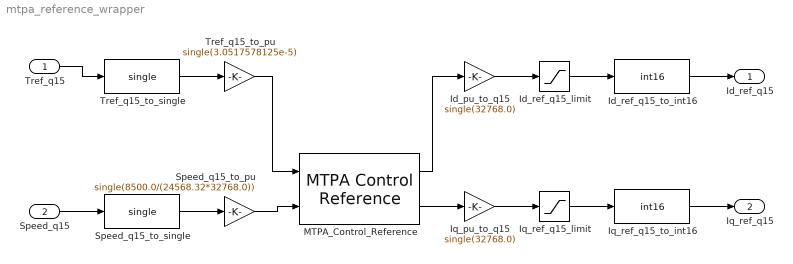
/*
 * Academic License - for use in teaching, academic research, and meeting
 * course requirements at degree granting institutions only.  Not for
 * government, commercial, or other organizational use.
 *
 * File: mtpa_reference_wrapper.c
 *
 * Code generated for Simulink model 'mtpa_reference_wrapper'.
 *
 * Model version                  : 1.4
 * Simulink Coder version         : 26.1 (R2026a) 20-Nov-2025
 * C/C++ source code generated on : Fri Jul 24 16:22:32 2026
 *
 * Target selection: ert.tlc
 * Embedded hardware selection: Intel->x86-64 (Windows64)
 * Code generation objectives: Unspecified
 * Validation result: Not run
 */

#include "mtpa_reference_wrapper.h"
#include "../mtpa_project_parameters.h"
#include <math.h>
#include "rtwtypes.h"

/* Block signals (default storage) */
B_mtpa_reference_wrapper_T mtpa_reference_wrapper_B;

/* External inputs (root inport signals with default storage) */
ExtU_mtpa_reference_wrapper_T mtpa_reference_wrapper_U;

/* External outputs (root outports fed by signals with default storage) */
ExtY_mtpa_reference_wrapper_T mtpa_reference_wrapper_Y;

/* Real-time model */
static RT_MODEL_mtpa_reference_wrapp_T mtpa_reference_wrapper_M_;
RT_MODEL_mtpa_reference_wrapp_T *const mtpa_reference_wrapper_M =
  &mtpa_reference_wrapper_M_;

/* Fixed-parameter generated reference retained for model traceability. */
void mtpa_reference_wrapper_model_step(void)
{
  real32_T rtb_Abs;
  real32_T rtb_Abs_f;
  real32_T rtb_Abs_ka;
  real32_T rtb_Id_ref_q15_limit;
  real32_T rtb_Id_ref_q15_limit_p;
  real32_T rtb_Iq_ref_q15_limit;
  real32_T rtb_Saturation2;
  real32_T rtb_Sqrt;
  real32_T rtb_we;

  /* Gain: '<Root>/Tref_q15_to_pu' incorporates:
   *  DataTypeConversion: '<Root>/Tref_q15_to_single'
   *  Inport: '<Root>/Tref_q15'
   */
  rtb_Iq_ref_q15_limit = 3.0517578E-5F * (real32_T)
    mtpa_reference_wrapper_U.Tref_q15;

  /* Abs: '<S3>/Abs' */
  rtb_Abs = fabsf(rtb_Iq_ref_q15_limit);

  /* Product: '<S9>/Square' incorporates:
   *  Saturate: '<S8>/Saturation'
   */
  rtb_Abs_ka = rtb_Abs * rtb_Abs;

  /* Sum: '<S9>/Sum2' incorporates:
   *  Abs: '<S9>/Abs'
   *  Constant: '<S9>/term1'
   *  Constant: '<S9>/term2'
   *  Gain: '<S9>/term3'
   *  Product: '<S9>/Square1'
   *  Sqrt: '<S9>/Sqrt'
   *  Sum: '<S9>/Sum3'
   */
  rtb_Saturation2 = 0.14722988F - sqrtf(fabsf(-0.5F * rtb_Abs_ka - 0.021676637F));

  /* Saturate: '<S13>/Saturation2' */
  if (rtb_Saturation2 > 0.0F) {
    rtb_Saturation2 = 0.0F;
  }

  /* End of Saturate: '<S13>/Saturation2' */

  /* Abs: '<S1>/Abs' incorporates:
   *  DataTypeConversion: '<Root>/Speed_q15_to_single'
   *  Gain: '<Root>/Speed_q15_to_pu'
   *  Inport: '<Root>/Speed_q15'
   */
  rtb_Abs_f = fabsf(1.05582885E-5F * (real32_T)
                    mtpa_reference_wrapper_U.Speed_q15);

  /* Gain: '<S8>/Gain1' */
  rtb_we = 4.0F * rtb_Abs_f;

  /* Sum: '<S41>/Sum1' incorporates:
   *  Gain: '<S41>/FluxPM'
   *  Gain: '<S41>/Ld'
   *  Product: '<S41>/Product1'
   */
  rtb_Id_ref_q15_limit = rtb_Saturation2 * rtb_we * 0.267372F + 0.14433888F *
    rtb_we;

  /* Sqrt: '<S13>/Sqrt' incorporates:
   *  Abs: '<S13>/Abs'
   *  Product: '<S13>/Product1'
   *  Sum: '<S13>/Sum2'
   */
  rtb_Sqrt = sqrtf(fabsf(rtb_Abs_ka - rtb_Saturation2 * rtb_Saturation2));

  /* Gain: '<S41>/Lq' incorporates:
   *  Product: '<S41>/Product'
   */
  rtb_Id_ref_q15_limit_p = rtb_we * rtb_Sqrt * 0.51246303F;

  /* If: '<S8>/If' incorporates:
   *  Gain: '<S41>/2'
   *  Product: '<S41>/Product2'
   *  Product: '<S41>/Product3'
   *  RelationalOperator: '<S12>/GreaterThan'
   *  Sqrt: '<S41>/Sqrt'
   *  Sum: '<S41>/Sum3'
   *  Switch: '<S21>/Switch'
   */
  if (!(sqrtf(rtb_Id_ref_q15_limit * rtb_Id_ref_q15_limit +
              rtb_Id_ref_q15_limit_p * rtb_Id_ref_q15_limit_p) * 0.0017320508F >=
        mtpa_reference_wrapper_ConstB.Subtract)) {
    /* Outputs for IfAction SubSystem: '<S8>/MTPA condition' incorporates:
     *  ActionPort: '<S11>/Action Port'
     */
    /* SignalConversion generated from: '<S11>/id' incorporates:
     *  Merge: '<S8>/Merge'
     */
    mtpa_reference_wrapper_B.Merge[0] = rtb_Saturation2;

    /* SignalConversion generated from: '<S11>/iq' incorporates:
     *  Merge: '<S8>/Merge'
     */
    mtpa_reference_wrapper_B.Merge[1] = rtb_Sqrt;

    /* End of Outputs for SubSystem: '<S8>/MTPA condition' */
  } else {
    /* Outputs for IfAction SubSystem: '<S8>/FW condition' incorporates:
     *  ActionPort: '<S10>/Action Port'
     */
    if (rtb_Abs_f != 0.0F) {
      /* Switch: '<S21>/Switch' incorporates:
       *  Math: '<S21>/Math Function'
       *
       * About '<S21>/Math Function':
       *  Operator: reciprocal
       */
      rtb_Saturation2 = 1.0F / rtb_Abs_f;
    } else {
      /* Switch: '<S21>/Switch' incorporates:
       *  Constant: '<S21>/Constant'
       */
      rtb_Saturation2 = 1.0F;
    }

    /* Gain: '<S16>/  ' incorporates:
     *  Product: '<S16>/Square1'
     */
    rtb_Saturation2 = rtb_Saturation2 * mtpa_reference_wrapper_ConstB.Subtract1 *
      0.5718405F;

    /* Sum: '<S16>/Sum3' incorporates:
     *  Constant: '<S16>/term2'
     *  Constant: '<S16>/term3'
     *  Gain: '<S16>/ '
     *  Product: '<S16>/Square'
     *  Product: '<S16>/Square2'
     *  Sum: '<S16>/Sum1'
     */
    rtb_Saturation2 = 0.040769774F - (-1.4830285F - (-(rtb_Saturation2 *
      rtb_Saturation2)));

    /* If: '<S22>/If' incorporates:
     *  Constant: '<S38>/Constant'
     *  Gain: '<S39>/zero'
     *  RelationalOperator: '<S38>/Compare'
     *  Sqrt: '<S40>/Sqrt'
     */
    if (rtb_Saturation2 < 0.0F) {
      /* Outputs for IfAction SubSystem: '<S22>/If negative value' incorporates:
       *  ActionPort: '<S39>/Action Port'
       */
      rtb_Saturation2 *= 0.0F;

      /* End of Outputs for SubSystem: '<S22>/If negative value' */
    } else {
      /* Outputs for IfAction SubSystem: '<S22>/If positive value' incorporates:
       *  ActionPort: '<S40>/Action Port'
       */
      rtb_Saturation2 = sqrtf(rtb_Saturation2);

      /* End of Outputs for SubSystem: '<S22>/If positive value' */
    }

    /* Outputs for IfAction SubSystem: '<S20>/D or Q Axis Priority' incorporates:
     *  ActionPort: '<S24>/Action Port'
     */
    /* If: '<S20>/If' incorporates:
     *  Constant: '<S16>/term1'
     *  If: '<S22>/If'
     *  Product: '<S32>/Product'
     *  RelationalOperator: '<S33>/UpperRelop'
     *  Sum: '<S16>/Sum2'
     *  Sum: '<S32>/Sum'
     *  Switch: '<S33>/Switch'
     *  Switch: '<S33>/Switch2'
     */
    if (0.20191526F - rtb_Saturation2 < -1.0F) {
      rtb_Saturation2 = -1.0F;
    } else {
      rtb_Saturation2 = 0.20191526F - rtb_Saturation2;
    }

    rtb_Abs_f = 1.0F - rtb_Saturation2 * rtb_Saturation2;

    /* If: '<S32>/If' incorporates:
     *  If: '<S20>/If'
     *  Product: '<S32>/Product2'
     *  RelationalOperator: '<S32>/Relational Operator'
     *  Switch: '<S34>/Switch1'
     */
    if (rtb_Abs_f >= rtb_Abs_ka) {
      /* Outputs for IfAction SubSystem: '<S32>/passThrough' incorporates:
       *  ActionPort: '<S35>/Action Port'
       */
      /* Switch: '<S24>/Switch1' incorporates:
       *  Saturate: '<S8>/Saturation'
       *  SignalConversion generated from: '<S35>/ref2'
       */
      mtpa_reference_wrapper_B.Merge[1] = rtb_Abs;

      /* End of Outputs for SubSystem: '<S32>/passThrough' */
    } else {
      /* Outputs for IfAction SubSystem: '<S32>/limitRef2' incorporates:
       *  ActionPort: '<S34>/Action Port'
       */
      if (!(rtb_Abs_f > 0.0F)) {
        /* Switch: '<S34>/Switch1' incorporates:
         *  Constant: '<S34>/Constant'
         */
        rtb_Abs_f = 0.0F;
      }

      /* Switch: '<S24>/Switch1' incorporates:
       *  Sqrt: '<S34>/Sqrt'
       *  Switch: '<S34>/Switch'
       *  Switch: '<S34>/Switch1'
       */
      mtpa_reference_wrapper_B.Merge[1] = sqrtf(rtb_Abs_f);

      /* End of Outputs for SubSystem: '<S32>/limitRef2' */
    }

    /* End of If: '<S32>/If' */

    /* If: '<S20>/If' incorporates:
     *  Switch: '<S24>/Switch1'
     */
    mtpa_reference_wrapper_B.Merge[0] = rtb_Saturation2;

    /* End of Outputs for SubSystem: '<S20>/D or Q Axis Priority' */

    /* Outputs for IfAction SubSystem: '<S10>/If Action Subsystem1' incorporates:
     *  ActionPort: '<S15>/Action Port'
     */
    /* If: '<S10>/If' incorporates:
     *  Constant: '<S23>/Constant'
     *  Gain: '<S23>/Gain'
     *  Product: '<S19>/Divide'
     *  Sum: '<S19>/Add1'
     *  Sum: '<S23>/Add'
     */
    rtb_Abs_ka = -1.698025F * mtpa_reference_wrapper_B.Merge[0] + 1.0F;

    /* End of Outputs for SubSystem: '<S10>/If Action Subsystem1' */

    /* Product: '<S23>/Divide' incorporates:
     *  Sum: '<S23>/Add'
     */
    rtb_Abs = 1.0F / rtb_Abs_ka * rtb_Abs * mtpa_reference_wrapper_ConstB.Add1;

    /* If: '<S10>/If' incorporates:
     *  RelationalOperator: '<S10>/GreaterThan'
     */
    if (!(rtb_Abs > mtpa_reference_wrapper_B.Merge[1])) {
      /* Outputs for IfAction SubSystem: '<S10>/If Action Subsystem1' incorporates:
       *  ActionPort: '<S15>/Action Port'
       */
      /* Product: '<S17>/Divide' incorporates:
       *  Gain: '<S10>/Gain'
       *  Gain: '<S17>/2'
       */
      rtb_we = mtpa_reference_wrapper_ConstB.Subtract_k / (rtb_we *
        0.0017320508F);

      /* UnaryMinus: '<S18>/Unary Minus' incorporates:
       *  Product: '<S18>/Divide'
       *  Sum: '<S18>/Sum1'
       */
      rtb_Id_ref_q15_limit = -(rtb_Abs / (mtpa_reference_wrapper_B.Merge[0] -
        0.5889195F));

      /* Sum: '<S18>/constant output' incorporates:
       *  Product: '<S18>/Product'
       */
      rtb_Saturation2 = rtb_Abs - rtb_Id_ref_q15_limit *
        mtpa_reference_wrapper_B.Merge[0];

      /* Sum: '<S17>/A' incorporates:
       *  Constant: '<S17>/ld2_lq2'
       *  Product: '<S17>/m2'
       */
      rtb_Abs_f = rtb_Id_ref_q15_limit * rtb_Id_ref_q15_limit + 0.27221173F;

      /* Sum: '<S17>/B' incorporates:
       *  Constant: '<S17>/fluxPMLd_Lq2'
       *  Product: '<S17>/mc'
       */
      rtb_Id_ref_q15_limit = rtb_Id_ref_q15_limit * rtb_Saturation2 +
        0.14695156F;

      /* Product: '<S17>/Divide1' incorporates:
       *  Abs: '<S17>/Abs'
       *  Constant: '<S17>/fluxPM2_Lq2'
       *  Product: '<S17>/AC'
       *  Product: '<S17>/B2'
       *  Product: '<S17>/Product'
       *  Product: '<S17>/c2'
       *  Sqrt: '<S17>/Sqrt'
       *  Sum: '<S17>/C'
       *  Sum: '<S17>/Subtract4'
       *  Sum: '<S17>/Subtract5'
       */
      rtb_Abs_f = (sqrtf(fabsf(rtb_Id_ref_q15_limit * rtb_Id_ref_q15_limit -
        ((rtb_Saturation2 * rtb_Saturation2 + 0.07933075F) - rtb_we * rtb_we) *
        rtb_Abs_f)) - rtb_Id_ref_q15_limit) / rtb_Abs_f;

      /* Merge: '<S8>/Merge' incorporates:
       *  Constant: '<S19>/Constant'
       *  Gain: '<S19>/Gain'
       *  Product: '<S19>/Divide'
       *  SignalConversion generated from: '<S15>/Out1'
       *  Sum: '<S19>/Add'
       */
      mtpa_reference_wrapper_B.Merge[0] = rtb_Abs_f;
      mtpa_reference_wrapper_B.Merge[1] = 1.0F / (-1.698025F * rtb_Abs_f + 1.0F)
        * rtb_Abs * rtb_Abs_ka;

      /* End of Outputs for SubSystem: '<S10>/If Action Subsystem1' */
    }

    /* End of Outputs for SubSystem: '<S8>/FW condition' */
  }

  /* End of If: '<S8>/If' */

  /* Gain: '<Root>/Id_pu_to_q15' */
  rtb_we = 32768.0F * mtpa_reference_wrapper_B.Merge[0];

  /* Saturate: '<Root>/Id_ref_q15_limit' */
  if (rtb_we > 32767.0F) {
    /* DataTypeConversion: '<Root>/Id_ref_q15_to_int16' */
    rtb_we = 32767.0F;
  } else if (rtb_we < -32768.0F) {
    /* DataTypeConversion: '<Root>/Id_ref_q15_to_int16' */
    rtb_we = -32768.0F;
  }

  /* End of Saturate: '<Root>/Id_ref_q15_limit' */

  /* DataTypeConversion: '<Root>/Id_ref_q15_to_int16' */
  if (rtb_we < 32768.0F) {
    /* Outport: '<Root>/Id_ref_q15' */
    mtpa_reference_wrapper_Y.Id_ref_q15 = (int16_T)rtb_we;
  } else {
    /* Outport: '<Root>/Id_ref_q15' */
    mtpa_reference_wrapper_Y.Id_ref_q15 = MAX_int16_T;
  }

  /* Switch: '<S5>/sign' incorporates:
   *  UnaryMinus: '<S5>/Unary Minus'
   */
  if (rtb_Iq_ref_q15_limit > 0.0F) {
    rtb_Saturation2 = mtpa_reference_wrapper_B.Merge[1];
  } else {
    rtb_Saturation2 = -mtpa_reference_wrapper_B.Merge[1];
  }

  /* Gain: '<Root>/Iq_pu_to_q15' incorporates:
   *  Switch: '<S5>/sign'
   */
  rtb_we = 32768.0F * rtb_Saturation2;

  /* Saturate: '<Root>/Iq_ref_q15_limit' */
  if (rtb_we > 32767.0F) {
    /* DataTypeConversion: '<Root>/Iq_ref_q15_to_int16' */
    rtb_we = 32767.0F;
  } else if (rtb_we < -32768.0F) {
    /* DataTypeConversion: '<Root>/Iq_ref_q15_to_int16' */
    rtb_we = -32768.0F;
  }

  /* End of Saturate: '<Root>/Iq_ref_q15_limit' */

  /* DataTypeConversion: '<Root>/Iq_ref_q15_to_int16' */
  if (rtb_we < 32768.0F) {
    /* Outport: '<Root>/Iq_ref_q15' */
    mtpa_reference_wrapper_Y.Iq_ref_q15 = (int16_T)rtb_we;
  } else {
    /* Outport: '<Root>/Iq_ref_q15' */
    mtpa_reference_wrapper_Y.Iq_ref_q15 = MAX_int16_T;
  }
}

static int16_T MTPA_ProjectParameters_toQ15(real32_T value)
{
  real32_T scaledValue = value * 32768.0F;

  if (scaledValue > 32767.0F) {
    return MAX_int16_T;
  }

  if (scaledValue < -32768.0F) {
    return MIN_int16_T;
  }

  return (int16_T)scaledValue;
}

static void MTPA_ProjectParameters_calculateCurrent(const MTPA_ProjectParameters *parameters,
                                                     real32_T currentMagnitudeA,
                                                     real32_T *directCurrentA,
                                                     real32_T *quadratureCurrentA)
{
  real32_T saliencyH = parameters->quadratureInductanceH - parameters->directInductanceH;
  real32_T directCurrent = 0.0F;
  real32_T quadratureCurrentSquared;

  if (saliencyH > 1.0E-9F) {
    directCurrent = (parameters->permanentMagnetFluxWb
      - sqrtf(parameters->permanentMagnetFluxWb * parameters->permanentMagnetFluxWb
        + 8.0F * saliencyH * saliencyH * currentMagnitudeA * currentMagnitudeA))
      / (4.0F * saliencyH);

    if (directCurrent < -currentMagnitudeA) {
      directCurrent = -currentMagnitudeA;
    }
  }

  quadratureCurrentSquared = currentMagnitudeA * currentMagnitudeA
    - directCurrent * directCurrent;
  if (quadratureCurrentSquared < 0.0F) {
    quadratureCurrentSquared = 0.0F;
  }

  *directCurrentA = directCurrent;
  *quadratureCurrentA = sqrtf(quadratureCurrentSquared);
}

static real32_T MTPA_ProjectParameters_calculateTorque(const MTPA_ProjectParameters *parameters,
                                                        real32_T currentMagnitudeA)
{
  real32_T directCurrentA;
  real32_T quadratureCurrentA;

  MTPA_ProjectParameters_calculateCurrent(parameters, currentMagnitudeA,
    &directCurrentA, &quadratureCurrentA);

  return 1.5F * (real32_T)parameters->polePairs
    * (parameters->permanentMagnetFluxWb
      + (parameters->directInductanceH - parameters->quadratureInductanceH) * directCurrentA)
    * quadratureCurrentA;
}

/* Project-parameter entry point used by the C FOC integration. */
void mtpa_reference_wrapper_step(void)
{
  const MTPA_ProjectParameters *parameters = MTPA_ProjectParameters_get();
  real32_T requestedTorqueNm;
  real32_T maximumTorqueNm;
  real32_T lowCurrentA;
  real32_T highCurrentA;
  real32_T currentMagnitudeA;
  real32_T directCurrentA;
  real32_T quadratureCurrentA;
  real32_T signedQuadratureCurrentA;
  uint8_T iteration;

  if (parameters->valid == 0u) {
    mtpa_reference_wrapper_B.Merge[0] = 0.0F;
    mtpa_reference_wrapper_B.Merge[1] = 0.0F;
    mtpa_reference_wrapper_Y.Id_ref_q15 = 0;
    mtpa_reference_wrapper_Y.Iq_ref_q15 = 0;
    return;
  }

  requestedTorqueNm = 3.0517578E-5F * (real32_T)mtpa_reference_wrapper_U.Tref_q15
    * parameters->baseTorqueNm;
  if (requestedTorqueNm < 0.0F) {
    requestedTorqueNm = -requestedTorqueNm;
  }

  maximumTorqueNm = MTPA_ProjectParameters_calculateTorque(parameters,
    parameters->baseCurrentA);
  lowCurrentA = 0.0F;
  highCurrentA = parameters->baseCurrentA;

  if (requestedTorqueNm < maximumTorqueNm) {
    for (iteration = 0u; iteration < 12u; ++iteration) {
      currentMagnitudeA = 0.5F * (lowCurrentA + highCurrentA);

      if (MTPA_ProjectParameters_calculateTorque(parameters, currentMagnitudeA)
          < requestedTorqueNm) {
        lowCurrentA = currentMagnitudeA;
      } else {
        highCurrentA = currentMagnitudeA;
      }
    }
  }

  MTPA_ProjectParameters_calculateCurrent(parameters, highCurrentA,
    &directCurrentA, &quadratureCurrentA);
  signedQuadratureCurrentA = (mtpa_reference_wrapper_U.Tref_q15 < 0)
    ? -quadratureCurrentA : quadratureCurrentA;

  mtpa_reference_wrapper_B.Merge[0] = directCurrentA / parameters->baseCurrentA;
  mtpa_reference_wrapper_B.Merge[1] = signedQuadratureCurrentA / parameters->baseCurrentA;
  mtpa_reference_wrapper_Y.Id_ref_q15 = MTPA_ProjectParameters_toQ15(
    mtpa_reference_wrapper_B.Merge[0]);
  mtpa_reference_wrapper_Y.Iq_ref_q15 = MTPA_ProjectParameters_toQ15(
    mtpa_reference_wrapper_B.Merge[1]);
}
